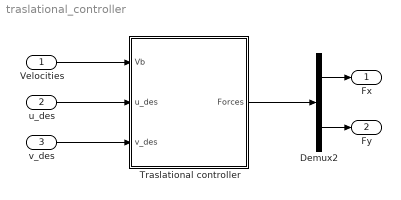
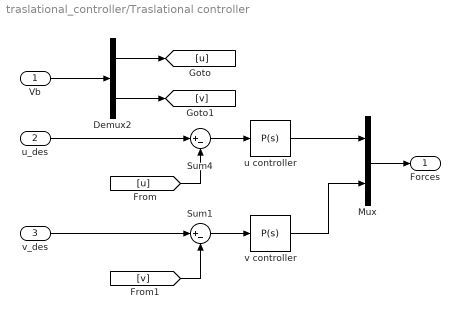
/*
 * traslational_controller.cpp
 *
 * Academic License - for use in teaching, academic research, and meeting
 * course requirements at degree granting institutions only.  Not for
 * government, commercial, or other organizational use.
 *
 * Code generation for model "traslational_controller".
 *
 * Model version              : 1.115
 * Simulink Coder version : 8.10 (R2016a) 10-Feb-2016
 * C++ source code generated on : Mon Jul 25 09:41:14 2016
 *
 * Target selection: grt.tlc
 * Note: GRT includes extra infrastructure and instrumentation for prototyping
 * Embedded hardware selection: ARM Compatible->ARM Cortex
 * Code generation objective: Execution efficiency
 * Validation result: Not run
 */

#include "traslational_controller.h"
#include "traslational_controller_private.h"

/* Model step function */
void traslational_controllerModelClass::step()
{
  /* Outport: '<Root>/Fx' incorporates:
   *  Gain: '<S2>/Proportional Gain'
   *  Inport: '<Root>/Velocities'
   *  Inport: '<Root>/u_des'
   *  Sum: '<S1>/Sum4'
   */
  traslational_controller_Y.Fx = (traslational_controller_U.u_des -
    traslational_controller_U.Velocities[0]) * traslational_controller_P.Kp_u;

  /* Outport: '<Root>/Fy' incorporates:
   *  Gain: '<S3>/Proportional Gain'
   *  Inport: '<Root>/Velocities'
   *  Inport: '<Root>/v_des'
   *  Sum: '<S1>/Sum1'
   */
  traslational_controller_Y.Fy = (traslational_controller_U.v_des -
    traslational_controller_U.Velocities[1]) * traslational_controller_P.Kp_v;
}
